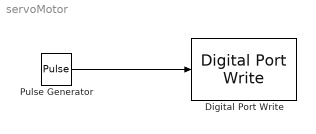
/*
 * File: servoMotor.c
 *
 * Code generated for Simulink model 'servoMotor'.
 *
 * Model version                  : 1.1
 * Simulink Coder version         : 24.1 (R2024a) 19-Nov-2023
 * C/C++ source code generated on : Tue Apr 22 14:31:58 2025
 *
 * Target selection: ert.tlc
 * Embedded hardware selection: ARM Compatible->ARM Cortex-M
 * Code generation objectives: Unspecified
 * Validation result: Not run
 */

#include "servoMotor.h"
#include "rtwtypes.h"
#include "servoMotor_private.h"

/* Block states (default storage) */
DW_servoMotor_T servoMotor_DW;

/* Real-time model */
static RT_MODEL_servoMotor_T servoMotor_M_;
RT_MODEL_servoMotor_T *const servoMotor_M = &servoMotor_M_;
static void rate_monotonic_scheduler(void);

/*
 * Set which subrates need to run this base step (base rate always runs).
 * This function must be called prior to calling the model step function
 * in order to remember which rates need to run this base step.  The
 * buffering of events allows for overlapping preemption.
 */
void servoMotor_SetEventsForThisBaseStep(boolean_T *eventFlags)
{
  /* Task runs when its counter is zero, computed via rtmStepTask macro */
  eventFlags[1] = ((boolean_T)rtmStepTask(servoMotor_M, 1));
}

/*
 *         This function updates active task flag for each subrate
 *         and rate transition flags for tasks that exchange data.
 *         The function assumes rate-monotonic multitasking scheduler.
 *         The function must be called at model base rate so that
 *         the generated code self-manages all its subrates and rate
 *         transition flags.
 */
static void rate_monotonic_scheduler(void)
{
  /* Compute which subrates run during the next base time step.  Subrates
   * are an integer multiple of the base rate counter.  Therefore, the subtask
   * counter is reset when it reaches its limit (zero means run).
   */
  (servoMotor_M->Timing.TaskCounters.TID[1])++;
  if ((servoMotor_M->Timing.TaskCounters.TID[1]) > 999) {/* Sample time: [1.0s, 0.0s] */
    servoMotor_M->Timing.TaskCounters.TID[1] = 0;
  }
}

/* Model step function for TID0 */
void servoMotor_step0(void)            /* Sample time: [0.001s, 0.0s] */
{
  {                                    /* Sample time: [0.001s, 0.0s] */
    rate_monotonic_scheduler();
  }

  /* Update absolute time */
  /* The "clockTick0" counts the number of times the code of this task has
   * been executed. The absolute time is the multiplication of "clockTick0"
   * and "Timing.stepSize0". Size of "clockTick0" ensures timer will not
   * overflow during the application lifespan selected.
   */
  servoMotor_M->Timing.taskTime0 =
    ((time_T)(++servoMotor_M->Timing.clockTick0)) *
    servoMotor_M->Timing.stepSize0;
}

/* Model step function for TID1 */
void servoMotor_step1(void)            /* Sample time: [1.0s, 0.0s] */
{
  GPIO_TypeDef * portNameLoc;
  real_T rtb_PulseGenerator;
  int32_T c;

  /* DiscretePulseGenerator: '<Root>/Pulse Generator' */
  rtb_PulseGenerator = (servoMotor_DW.clockTickCounter <
                        servoMotor_P.PulseGenerator_Duty) &&
    (servoMotor_DW.clockTickCounter >= 0) ? servoMotor_P.PulseGenerator_Amp :
    0.0;
  if (servoMotor_DW.clockTickCounter >= servoMotor_P.PulseGenerator_Period - 1.0)
  {
    servoMotor_DW.clockTickCounter = 0;
  } else {
    servoMotor_DW.clockTickCounter++;
  }

  /* End of DiscretePulseGenerator: '<Root>/Pulse Generator' */

  /* MATLABSystem: '<S3>/Digital Port Write' */
  portNameLoc = GPIOC;
  if (rtb_PulseGenerator != 0.0) {
    c = 1024;
  } else {
    c = 0;
  }

  LL_GPIO_SetOutputPin(portNameLoc, (uint32_T)c);
  LL_GPIO_ResetOutputPin(portNameLoc, ~(uint32_T)c & 1024U);

  /* End of MATLABSystem: '<S3>/Digital Port Write' */

  /* Update absolute time */
  /* The "clockTick1" counts the number of times the code of this task has
   * been executed. The resolution of this integer timer is 1.0, which is the step size
   * of the task. Size of "clockTick1" ensures timer will not overflow during the
   * application lifespan selected.
   */
  servoMotor_M->Timing.clockTick1++;
}
